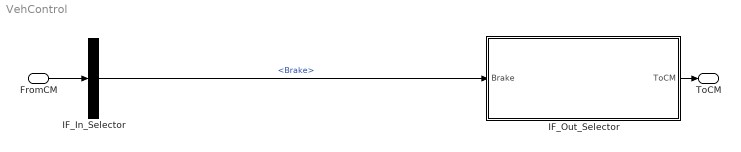
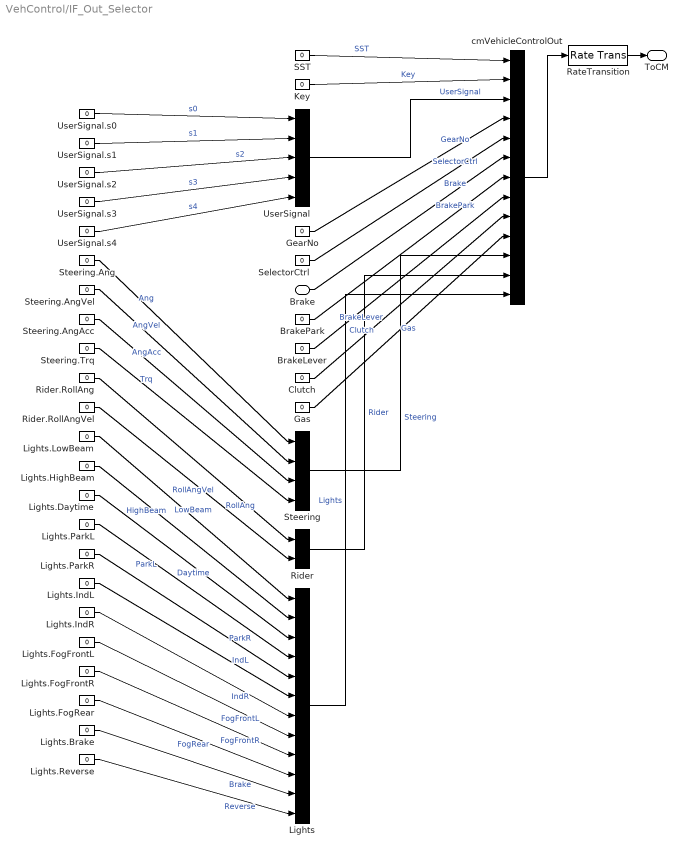
/*
 * VehControl.c
 *
 * Sponsored Third Party Support License -- for use only to support
 * products interfaced to MathWorks software under terms specified in your
 * company's restricted use license agreement.
 *
 * Code generation for model "VehControl".
 *
 * Model version              : 1.2
 * Simulink Coder version : 9.5 (R2021a) 14-Nov-2020
 * C source code generated on : Fri Feb  2 15:29:15 2024
 *
 * Target selection: CarMaker.tlc
 * Note: GRT includes extra infrastructure and instrumentation for prototyping
 * Embedded hardware selection: Intel->x86-64 (Windows64)
 * Code generation objectives: Unspecified
 * Validation result: Not run
 */

#include <infoc.h>
#include <Log.h>
#include <InfoParam.h>
#include <DataDict.h>
#include <MatSupp.h>
#include "VehControl.h"
#include "VehControl_private.h"
#include "VehControl_wrap.h"

/* CarMaker: Compile- and link-time checks for the right Matlab version. */
#if MATSUPP_NUMVER == 91000

/* The following statement will cause an "unresolved symbol" error when
   linking with a MatSupp library built for the wrong Matlab version. */
extern int MATSUPP_VARNAME(MatSupp, MATSUPP_NUMVER);
void *MATSUPP_VARNAME(MODEL, MATSUPP_NUMVER) = &MATSUPP_VARNAME(MatSupp,
  MATSUPP_NUMVER);

#else
# error Compiler options unsuitable for C code created with Matlab 9.10
#endif

const cmVehicleControlOut VehControl_rtZcmVehicleControlOut = {
  0.0,                                 /* SST */
  0.0,                                 /* Key */

  {
    0.0,                               /* s0 */
    0.0,                               /* s1 */
    0.0,                               /* s2 */
    0.0,                               /* s3 */
    0.0                                /* s4 */
  },                                   /* UserSignal */
  0.0,                                 /* GearNo */
  0.0,                                 /* SelectorCtrl */
  0.0,                                 /* Brake */
  0.0,                                 /* BrakePark */
  0.0,                                 /* BrakeLever */
  0.0,                                 /* Clutch */
  0.0,                                 /* Gas */

  {
    0.0,                               /* Ang */
    0.0,                               /* AngVel */
    0.0,                               /* AngAcc */
    0.0                                /* Trq */
  },                                   /* Steering */

  {
    0.0,                               /* RollAng */
    0.0                                /* RollAngVel */
  },                                   /* Rider */

  {
    0.0,                               /* LowBeam */
    0.0,                               /* HighBeam */
    0.0,                               /* Daytime */
    0.0,                               /* ParkL */
    0.0,                               /* ParkR */
    0.0,                               /* IndL */
    0.0,                               /* IndR */
    0.0,                               /* FogFrontL */
    0.0,                               /* FogFrontR */
    0.0,                               /* FogRear */
    0.0,                               /* Brake */
    0.0                                /* Reverse */
  }                                    /* Lights */
} ;                                    /* cmVehicleControlOut ground */

/* Block parameters (default storage) */
P_VehControl_T VehControl_P = {
  /* Expression: 0
   * Referenced by: '<S1>/SST'
   */
  0.0,

  /* Expression: 0
   * Referenced by: '<S1>/Key'
   */
  0.0,

  /* Expression: 0
   * Referenced by: '<S1>/UserSignal.s0'
   */
  0.0,

  /* Expression: 0
   * Referenced by: '<S1>/UserSignal.s1'
   */
  0.0,

  /* Expression: 0
   * Referenced by: '<S1>/UserSignal.s2'
   */
  0.0,

  /* Expression: 0
   * Referenced by: '<S1>/UserSignal.s3'
   */
  0.0,

  /* Expression: 0
   * Referenced by: '<S1>/UserSignal.s4'
   */
  0.0,

  /* Expression: 0
   * Referenced by: '<S1>/GearNo'
   */
  0.0,

  /* Expression: 0
   * Referenced by: '<S1>/SelectorCtrl'
   */
  0.0,

  /* Expression: 0
   * Referenced by: '<S1>/BrakePark'
   */
  0.0,

  /* Expression: 0
   * Referenced by: '<S1>/BrakeLever'
   */
  0.0,

  /* Expression: 0
   * Referenced by: '<S1>/Clutch'
   */
  0.0,

  /* Expression: 0
   * Referenced by: '<S1>/Gas'
   */
  0.0,

  /* Expression: 0
   * Referenced by: '<S1>/Steering.Ang'
   */
  0.0,

  /* Expression: 0
   * Referenced by: '<S1>/Steering.AngVel'
   */
  0.0,

  /* Expression: 0
   * Referenced by: '<S1>/Steering.AngAcc'
   */
  0.0,

  /* Expression: 0
   * Referenced by: '<S1>/Steering.Trq'
   */
  0.0,

  /* Expression: 0
   * Referenced by: '<S1>/Rider.RollAng'
   */
  0.0,

  /* Expression: 0
   * Referenced by: '<S1>/Rider.RollAngVel'
   */
  0.0,

  /* Expression: 0
   * Referenced by: '<S1>/Lights.LowBeam'
   */
  0.0,

  /* Expression: 0
   * Referenced by: '<S1>/Lights.HighBeam'
   */
  0.0,

  /* Expression: 0
   * Referenced by: '<S1>/Lights.Daytime'
   */
  0.0,

  /* Expression: 0
   * Referenced by: '<S1>/Lights.ParkL'
   */
  0.0,

  /* Expression: 0
   * Referenced by: '<S1>/Lights.ParkR'
   */
  0.0,

  /* Expression: 0
   * Referenced by: '<S1>/Lights.IndL'
   */
  0.0,

  /* Expression: 0
   * Referenced by: '<S1>/Lights.IndR'
   */
  0.0,

  /* Expression: 0
   * Referenced by: '<S1>/Lights.FogFrontL'
   */
  0.0,

  /* Expression: 0
   * Referenced by: '<S1>/Lights.FogFrontR'
   */
  0.0,

  /* Expression: 0
   * Referenced by: '<S1>/Lights.FogRear'
   */
  0.0,

  /* Expression: 0
   * Referenced by: '<S1>/Lights.Brake'
   */
  0.0,

  /* Expression: 0
   * Referenced by: '<S1>/Lights.Reverse'
   */
  0.0
};

const cmVehicleControlIn VehControl_rtZcmVehicleControlIn = { 0.0,/* SST */
  0.0,                                 /* Key */

  { 0.0,                               /* s0 */
    0.0,                               /* s1 */
    0.0,                               /* s2 */
    0.0,                               /* s3 */
    0.0                                /* s4 */
  },                                   /* UserSignal */
  0.0,                                 /* GearNo */
  0.0,                                 /* SelectorCtrl */
  0.0,                                 /* Brake */
  0.0,                                 /* BrakePark */
  0.0,                                 /* BrakeLever */
  0.0,                                 /* Clutch */
  0.0,                                 /* Gas */

  { 0.0,                               /* Ang */
    0.0,                               /* AngVel */
    0.0,                               /* AngAcc */
    0.0                                /* Trq */
  },                                   /* Steering */

  { 0.0,                               /* RollAng */
    0.0                                /* RollAngVel */
  },                                   /* Rider */

  { 0.0,                               /* LowBeam */
    0.0,                               /* HighBeam */
    0.0,                               /* Daytime */
    0.0,                               /* ParkL */
    0.0,                               /* ParkR */
    0.0,                               /* IndL */
    0.0,                               /* IndR */
    0.0,                               /* FogFrontL */
    0.0,                               /* FogFrontR */
    0.0,                               /* FogRear */
    0.0,                               /* Brake */
    0.0                                /* Reverse */
  }                                    /* Lights */
};

/* Model step function */
void VehControl_step(RT_MODEL_VehControl_T *const VehControl_M)
{
  ExtU_VehControl_T *VehControl_U = (ExtU_VehControl_T *) VehControl_M->inputs;
  ExtY_VehControl_T *VehControl_Y = (ExtY_VehControl_T *) VehControl_M->outputs;

  /* BusCreator generated from: '<Root>/ToCM' incorporates:
   *  Constant: '<S1>/UserSignal.s0'
   *  Constant: '<S1>/UserSignal.s1'
   *  Constant: '<S1>/UserSignal.s2'
   *  Constant: '<S1>/UserSignal.s3'
   *  Constant: '<S1>/UserSignal.s4'
   */
  VehControl_Y->ToCM.UserSignal.s0 = VehControl_P.UserSignals0_Value;
  VehControl_Y->ToCM.UserSignal.s1 = VehControl_P.UserSignals1_Value;
  VehControl_Y->ToCM.UserSignal.s2 = VehControl_P.UserSignals2_Value;
  VehControl_Y->ToCM.UserSignal.s3 = VehControl_P.UserSignals3_Value;
  VehControl_Y->ToCM.UserSignal.s4 = VehControl_P.UserSignals4_Value;

  /* BusCreator generated from: '<Root>/ToCM' incorporates:
   *  Constant: '<S1>/Steering.Ang'
   *  Constant: '<S1>/Steering.AngAcc'
   *  Constant: '<S1>/Steering.AngVel'
   *  Constant: '<S1>/Steering.Trq'
   */
  VehControl_Y->ToCM.Steering.Ang = VehControl_P.SteeringAng_Value;
  VehControl_Y->ToCM.Steering.AngVel = VehControl_P.SteeringAngVel_Value;
  VehControl_Y->ToCM.Steering.AngAcc = VehControl_P.SteeringAngAcc_Value;
  VehControl_Y->ToCM.Steering.Trq = VehControl_P.SteeringTrq_Value;

  /* BusCreator generated from: '<Root>/ToCM' incorporates:
   *  Constant: '<S1>/Rider.RollAng'
   *  Constant: '<S1>/Rider.RollAngVel'
   */
  VehControl_Y->ToCM.Rider.RollAng = VehControl_P.RiderRollAng_Value;
  VehControl_Y->ToCM.Rider.RollAngVel = VehControl_P.RiderRollAngVel_Value;

  /* BusCreator generated from: '<Root>/ToCM' incorporates:
   *  Constant: '<S1>/Lights.Brake'
   *  Constant: '<S1>/Lights.Daytime'
   *  Constant: '<S1>/Lights.FogFrontL'
   *  Constant: '<S1>/Lights.FogFrontR'
   *  Constant: '<S1>/Lights.FogRear'
   *  Constant: '<S1>/Lights.HighBeam'
   *  Constant: '<S1>/Lights.IndL'
   *  Constant: '<S1>/Lights.IndR'
   *  Constant: '<S1>/Lights.LowBeam'
   *  Constant: '<S1>/Lights.ParkL'
   *  Constant: '<S1>/Lights.ParkR'
   *  Constant: '<S1>/Lights.Reverse'
   */
  VehControl_Y->ToCM.Lights.LowBeam = VehControl_P.LightsLowBeam_Value;
  VehControl_Y->ToCM.Lights.HighBeam = VehControl_P.LightsHighBeam_Value;
  VehControl_Y->ToCM.Lights.Daytime = VehControl_P.LightsDaytime_Value;
  VehControl_Y->ToCM.Lights.ParkL = VehControl_P.LightsParkL_Value;
  VehControl_Y->ToCM.Lights.ParkR = VehControl_P.LightsParkR_Value;
  VehControl_Y->ToCM.Lights.IndL = VehControl_P.LightsIndL_Value;
  VehControl_Y->ToCM.Lights.IndR = VehControl_P.LightsIndR_Value;
  VehControl_Y->ToCM.Lights.FogFrontL = VehControl_P.LightsFogFrontL_Value;
  VehControl_Y->ToCM.Lights.FogFrontR = VehControl_P.LightsFogFrontR_Value;
  VehControl_Y->ToCM.Lights.FogRear = VehControl_P.LightsFogRear_Value;
  VehControl_Y->ToCM.Lights.Brake = VehControl_P.LightsBrake_Value;
  VehControl_Y->ToCM.Lights.Reverse = VehControl_P.LightsReverse_Value;

  /* BusCreator generated from: '<Root>/ToCM' incorporates:
   *  Constant: '<S1>/BrakeLever'
   *  Constant: '<S1>/BrakePark'
   *  Constant: '<S1>/Clutch'
   *  Constant: '<S1>/Gas'
   *  Constant: '<S1>/GearNo'
   *  Constant: '<S1>/Key'
   *  Constant: '<S1>/SST'
   *  Constant: '<S1>/SelectorCtrl'
   *  Inport: '<Root>/FromCM'
   *  Outport: '<Root>/ToCM'
   */
  VehControl_Y->ToCM.SST = VehControl_P.SST_Value;
  VehControl_Y->ToCM.Key = VehControl_P.Key_Value;
  VehControl_Y->ToCM.GearNo = VehControl_P.GearNo_Value;
  VehControl_Y->ToCM.SelectorCtrl = VehControl_P.SelectorCtrl_Value;
  VehControl_Y->ToCM.Brake = VehControl_U->FromCM.Brake;
  VehControl_Y->ToCM.BrakePark = VehControl_P.BrakePark_Value;
  VehControl_Y->ToCM.BrakeLever = VehControl_P.BrakeLever_Value;
  VehControl_Y->ToCM.Clutch = VehControl_P.Clutch_Value;
  VehControl_Y->ToCM.Gas = VehControl_P.Gas_Value;
}
